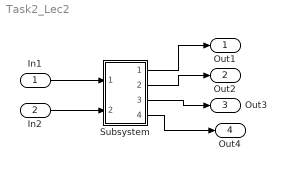
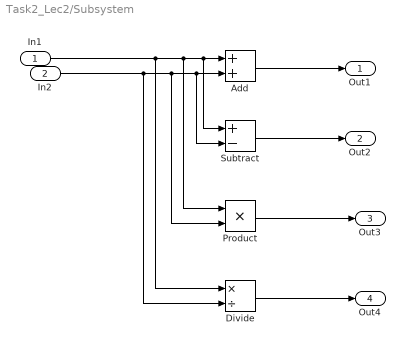
/*
 * File: Task2_Lec2.c
 *
 * Code generated for Simulink model 'Task2_Lec2'.
 *
 * Model version                  : 1.3
 * Simulink Coder version         : 8.10 (R2016a) 10-Feb-2016
 * C/C++ source code generated on : Wed Apr 06 02:00:27 2022
 *
 * Target selection: ert.tlc
 * Embedded hardware selection: Intel->x86-64 (Windows64)
 * Code generation objectives: Unspecified
 * Validation result: Not run
 */

#include "Task2_Lec2.h"
#include "Task2_Lec2_private.h"

/* External inputs (root inport signals with auto storage) */
ExtU_Task2_Lec2_T Task2_Lec2_U;

/* External outputs (root outports fed by signals with auto storage) */
ExtY_Task2_Lec2_T Task2_Lec2_Y;

/* Real-time model */
RT_MODEL_Task2_Lec2_T Task2_Lec2_M_;
RT_MODEL_Task2_Lec2_T *const Task2_Lec2_M = &Task2_Lec2_M_;

/* Model step function */
void Task2_Lec2_step(void)
{
  /* Outport: '<Root>/Out1' incorporates:
   *  Inport: '<Root>/In1'
   *  Inport: '<Root>/In2'
   *  Sum: '<S1>/Add'
   */
  Task2_Lec2_Y.Out1 = Task2_Lec2_U.In1 + Task2_Lec2_U.In2;

  /* Outport: '<Root>/Out2' incorporates:
   *  Inport: '<Root>/In1'
   *  Inport: '<Root>/In2'
   *  Sum: '<S1>/Subtract'
   */
  Task2_Lec2_Y.Out2 = Task2_Lec2_U.In1 - Task2_Lec2_U.In2;

  /* Outport: '<Root>/Out3' incorporates:
   *  Inport: '<Root>/In1'
   *  Inport: '<Root>/In2'
   *  Product: '<S1>/Product'
   */
  Task2_Lec2_Y.Out3 = Task2_Lec2_U.In1 * Task2_Lec2_U.In2;

  /* Outport: '<Root>/Out4' incorporates:
   *  Inport: '<Root>/In1'
   *  Inport: '<Root>/In2'
   *  Product: '<S1>/Divide'
   */
  Task2_Lec2_Y.Out4 = Task2_Lec2_U.In1 / Task2_Lec2_U.In2;
}
